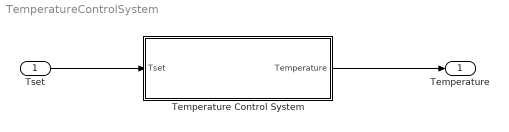
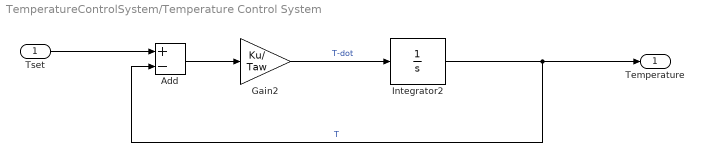
/*
 * File: TemperatureControlSystem.c
 *
 * Code generated for Simulink model 'TemperatureControlSystem'.
 *
 * Model version                  : 1.2
 * Simulink Coder version         : 9.5 (R2021a) 14-Nov-2020
 * C/C++ source code generated on : Thu Jul 31 02:19:54 2025
 *
 * Target selection: ert.tlc
 * Embedded hardware selection: Intel->x86-64 (Windows64)
 * Code generation objectives:
 *    1. Execution efficiency
 *    2. RAM efficiency
 * Validation result: Not run
 */

#include "TemperatureControlSystem.h"

/* Private macros used by the generated code to access rtModel */
#ifndef rtmIsMajorTimeStep
#define rtmIsMajorTimeStep(rtm)        (((rtm)->Timing.simTimeStep) == MAJOR_TIME_STEP)
#endif

#ifndef rtmIsMinorTimeStep
#define rtmIsMinorTimeStep(rtm)        (((rtm)->Timing.simTimeStep) == MINOR_TIME_STEP)
#endif

#ifndef rtmSetTPtr
#define rtmSetTPtr(rtm, val)           ((rtm)->Timing.t = (val))
#endif

/* Continuous states */
X rtX;

/* Block signals and states (default storage) */
DW rtDW;

/* External inputs (root inport signals with default storage) */
ExtU rtU;

/* External outputs (root outports fed by signals with default storage) */
ExtY rtY;

/* Real-time model */
static RT_MODEL rtM_;
RT_MODEL *const rtM = &rtM_;

/* private model entry point functions */
extern void TemperatureControlSystem_derivatives(void);

/*
 * This function updates continuous states using the ODE3 fixed-step
 * solver algorithm
 */
static void rt_ertODEUpdateContinuousStates(RTWSolverInfo *si )
{
  /* Solver Matrices */
  static const real_T rt_ODE3_A[3] = {
    1.0/2.0, 3.0/4.0, 1.0
  };

  static const real_T rt_ODE3_B[3][3] = {
    { 1.0/2.0, 0.0, 0.0 },

    { 0.0, 3.0/4.0, 0.0 },

    { 2.0/9.0, 1.0/3.0, 4.0/9.0 }
  };

  time_T t = rtsiGetT(si);
  time_T tnew = rtsiGetSolverStopTime(si);
  time_T h = rtsiGetStepSize(si);
  real_T *x = rtsiGetContStates(si);
  ODE3_IntgData *id = (ODE3_IntgData *)rtsiGetSolverData(si);
  real_T *y = id->y;
  real_T *f0 = id->f[0];
  real_T *f1 = id->f[1];
  real_T *f2 = id->f[2];
  real_T hB[3];
  int_T i;
  int_T nXc = 1;
  rtsiSetSimTimeStep(si,MINOR_TIME_STEP);

  /* Save the state values at time t in y, we'll use x as ynew. */
  (void) memcpy(y, x,
                (uint_T)nXc*sizeof(real_T));

  /* Assumes that rtsiSetT and ModelOutputs are up-to-date */
  /* f0 = f(t,y) */
  rtsiSetdX(si, f0);
  TemperatureControlSystem_derivatives();

  /* f(:,2) = feval(odefile, t + hA(1), y + f*hB(:,1), args(:)(*)); */
  hB[0] = h * rt_ODE3_B[0][0];
  for (i = 0; i < nXc; i++) {
    x[i] = y[i] + (f0[i]*hB[0]);
  }

  rtsiSetT(si, t + h*rt_ODE3_A[0]);
  rtsiSetdX(si, f1);
  TemperatureControlSystem_step();
  TemperatureControlSystem_derivatives();

  /* f(:,3) = feval(odefile, t + hA(2), y + f*hB(:,2), args(:)(*)); */
  for (i = 0; i <= 1; i++) {
    hB[i] = h * rt_ODE3_B[1][i];
  }

  for (i = 0; i < nXc; i++) {
    x[i] = y[i] + (f0[i]*hB[0] + f1[i]*hB[1]);
  }

  rtsiSetT(si, t + h*rt_ODE3_A[1]);
  rtsiSetdX(si, f2);
  TemperatureControlSystem_step();
  TemperatureControlSystem_derivatives();

  /* tnew = t + hA(3);
     ynew = y + f*hB(:,3); */
  for (i = 0; i <= 2; i++) {
    hB[i] = h * rt_ODE3_B[2][i];
  }

  for (i = 0; i < nXc; i++) {
    x[i] = y[i] + (f0[i]*hB[0] + f1[i]*hB[1] + f2[i]*hB[2]);
  }

  rtsiSetT(si, tnew);
  rtsiSetSimTimeStep(si,MAJOR_TIME_STEP);
}

/* Model step function */
void TemperatureControlSystem_step(void)
{
  if (rtmIsMajorTimeStep(rtM)) {
    /* set solver stop time */
    rtsiSetSolverStopTime(&rtM->solverInfo,((rtM->Timing.clockTick0+1)*
      rtM->Timing.stepSize0));
  }                                    /* end MajorTimeStep */

  /* Update absolute time of base rate at minor time step */
  if (rtmIsMinorTimeStep(rtM)) {
    rtM->Timing.t[0] = rtsiGetT(&rtM->solverInfo);
  }

  /* Outport: '<Root>/Temperature' incorporates:
   *  Integrator: '<S1>/Integrator2'
   */
  rtY.Temperature = rtX.Integrator2_CSTATE;

  /* Gain: '<S1>/Gain2' incorporates:
   *  Inport: '<Root>/Tset'
   *  Integrator: '<S1>/Integrator2'
   *  Sum: '<S1>/Add'
   */
  rtDW.Tdot = (rtU.Tset - rtX.Integrator2_CSTATE) * 0.0625;
  if (rtmIsMajorTimeStep(rtM)) {
    rt_ertODEUpdateContinuousStates(&rtM->solverInfo);

    /* Update absolute time for base rate */
    /* The "clockTick0" counts the number of times the code of this task has
     * been executed. The absolute time is the multiplication of "clockTick0"
     * and "Timing.stepSize0". Size of "clockTick0" ensures timer will not
     * overflow during the application lifespan selected.
     */
    ++rtM->Timing.clockTick0;
    rtM->Timing.t[0] = rtsiGetSolverStopTime(&rtM->solverInfo);
  }                                    /* end MajorTimeStep */
}
